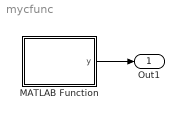
== matlab function mycfunc/MATLAB Function ==
function y = myfunc
%#codegen
y = 21;
coder.cinclude('myMult2.h');
y = coder.ceval('myMult2', y);
% Specify the locations of myMult2.h and myMult2.c
coder.extrinsic('pwd', 'fullfile');
customDir = coder.const(fullfile(pwd, 'mycfiles'));
coder.updateBuildInfo('addIncludePaths', customDir);
coder.updateBuildInfo('addSourcePaths', customDir);
coder.updateBuildInfo('addSourceFiles', 'myMult2.c');
end

/*
 * mycfunc.c
 *
 * Code generation for model "mycfunc".
 *
 * Model version              : 1.2
 * Simulink Coder version : 8.12 (R2017a) 16-Feb-2017
 * C source code generated on : Tue Sep 15 09:39:04 2020
 *
 * Target selection: grt.tlc
 * Note: GRT includes extra infrastructure and instrumentation for prototyping
 * Embedded hardware selection: Intel->x86-64 (Windows64)
 * Code generation objectives: Unspecified
 * Validation result: Not run
 */

#include "mycfunc.h"
#include "mycfunc_private.h"

/* External outputs (root outports fed by signals with auto storage) */
ExtY_mycfunc_T mycfunc_Y;

/* Real-time model */
RT_MODEL_mycfunc_T mycfunc_M_;
RT_MODEL_mycfunc_T *const mycfunc_M = &mycfunc_M_;

/* Model step function */
void mycfunc_step(void)
{
  /* Outport: '<Root>/Out1' incorporates:
   *  MATLAB Function: '<Root>/MATLAB Function'
   */
  /* MATLAB Function 'MATLAB Function': '<S1>:1' */
  /* '<S1>:1:3' */
  /* '<S1>:1:5' */
  mycfunc_Y.Out1 = myMult2(21.0);

  /*  Specify the locations of myMult2.h and myMult2.c */

  /* Matfile logging */
  rt_UpdateTXYLogVars(mycfunc_M->rtwLogInfo, (&mycfunc_M->Timing.taskTime0));

  /* signal main to stop simulation */
  {                                    /* Sample time: [0.2s, 0.0s] */
    if ((rtmGetTFinal(mycfunc_M)!=-1) &&
        !((rtmGetTFinal(mycfunc_M)-mycfunc_M->Timing.taskTime0) >
          mycfunc_M->Timing.taskTime0 * (DBL_EPSILON))) {
      rtmSetErrorStatus(mycfunc_M, "Simulation finished");
    }
  }

  /* Update absolute time for base rate */
  /* The "clockTick0" counts the number of times the code of this task has
   * been executed. The absolute time is the multiplication of "clockTick0"
   * and "Timing.stepSize0". Size of "clockTick0" ensures timer will not
   * overflow during the application lifespan selected.
   * Timer of this task consists of two 32 bit unsigned integers.
   * The two integers represent the low bits Timing.clockTick0 and the high bits
   * Timing.clockTickH0. When the low bit overflows to 0, the high bits increment.
   */
  if (!(++mycfunc_M->Timing.clockTick0)) {
    ++mycfunc_M->Timing.clockTickH0;
  }

  mycfunc_M->Timing.taskTime0 = mycfunc_M->Timing.clockTick0 *
    mycfunc_M->Timing.stepSize0 + mycfunc_M->Timing.clockTickH0 *
    mycfunc_M->Timing.stepSize0 * 4294967296.0;
}
